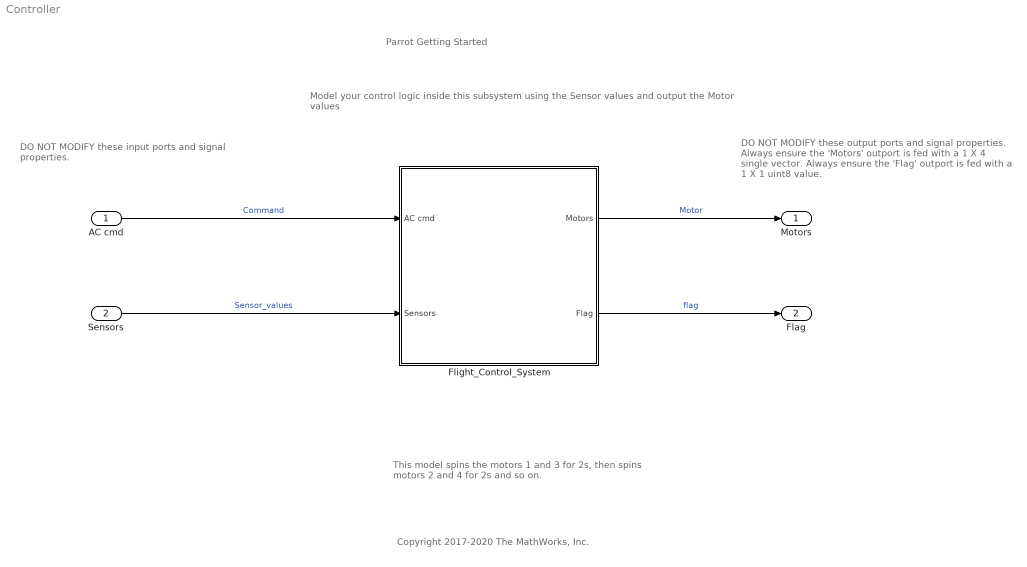
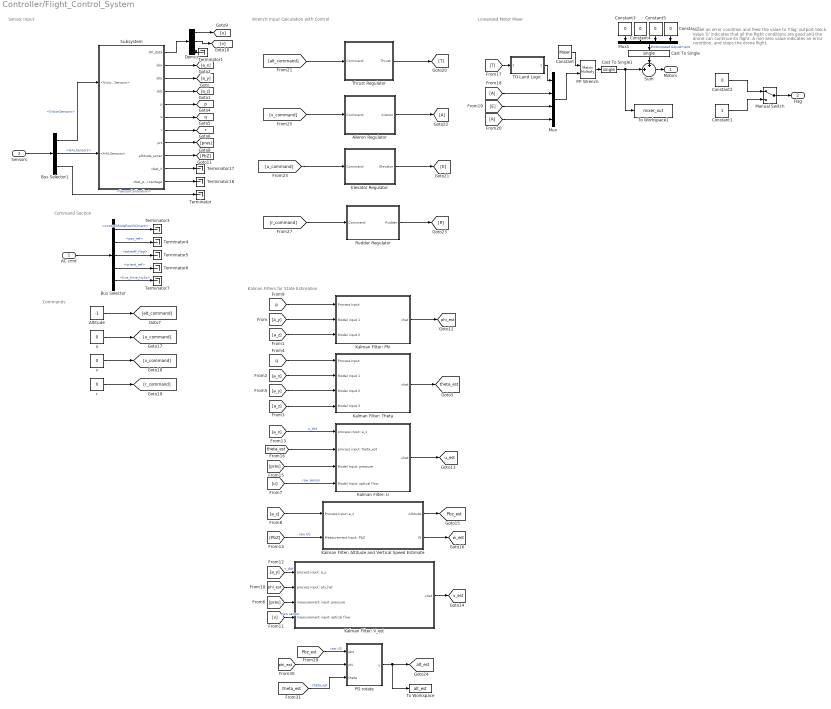
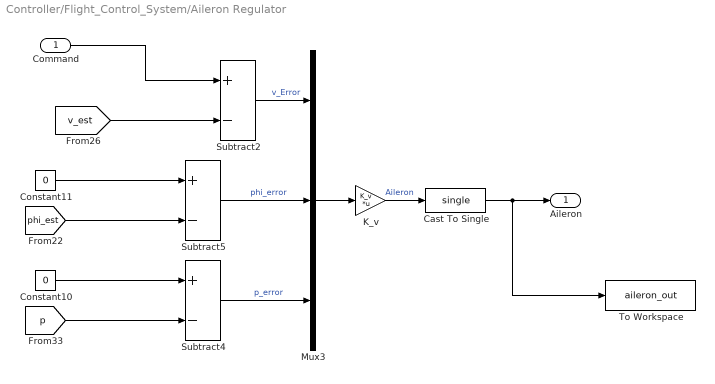
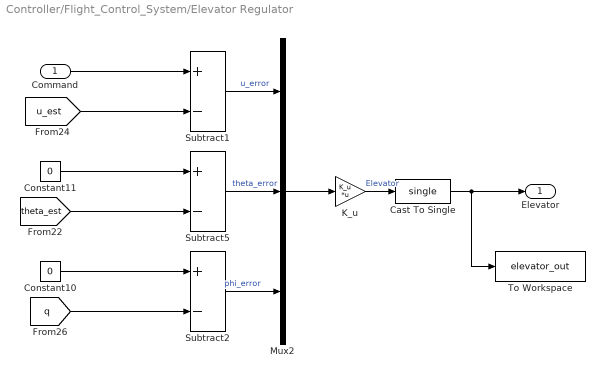
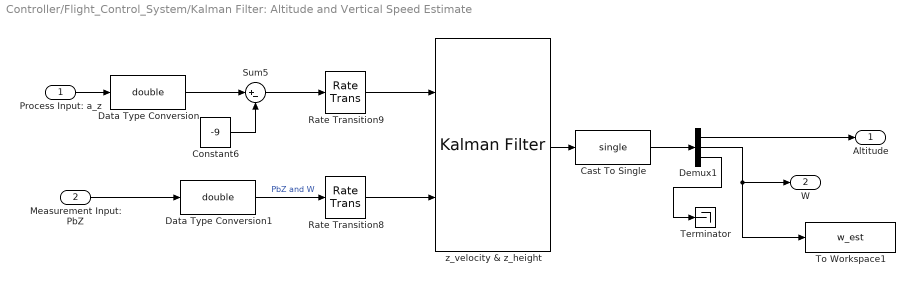
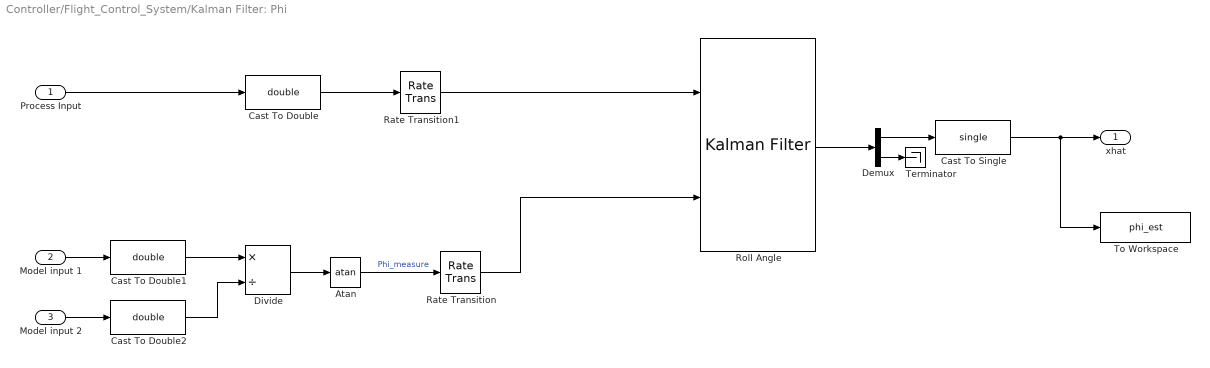
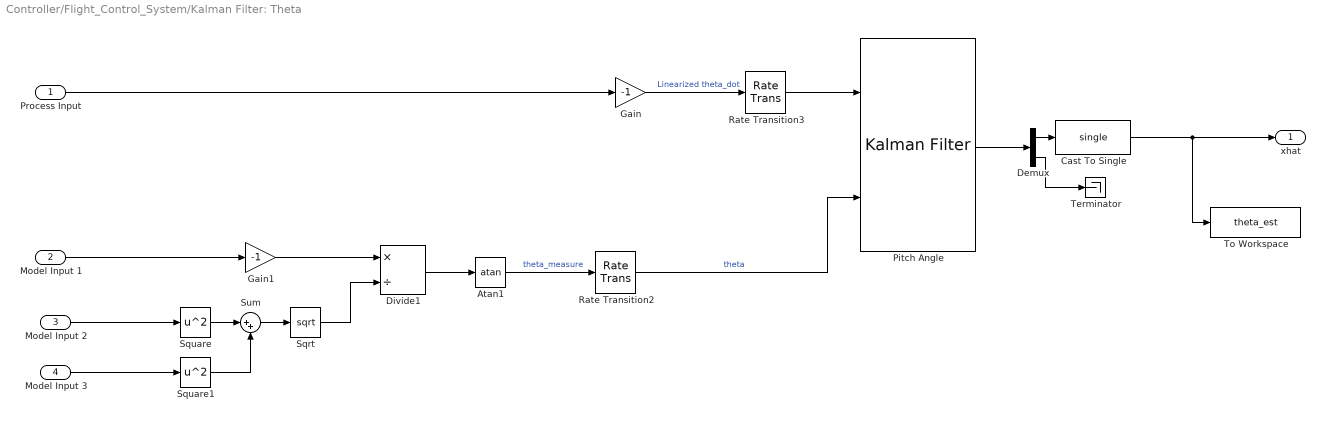
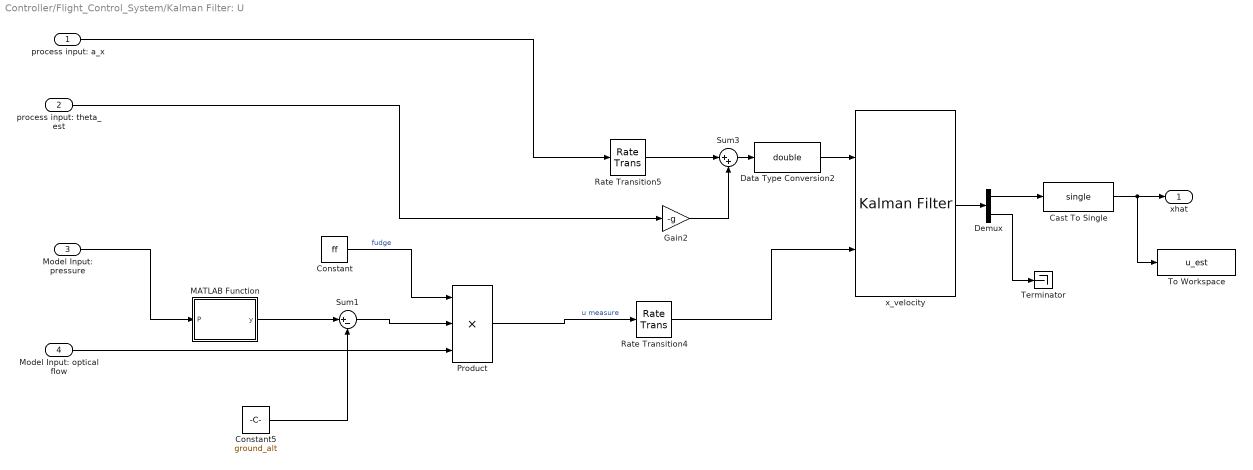
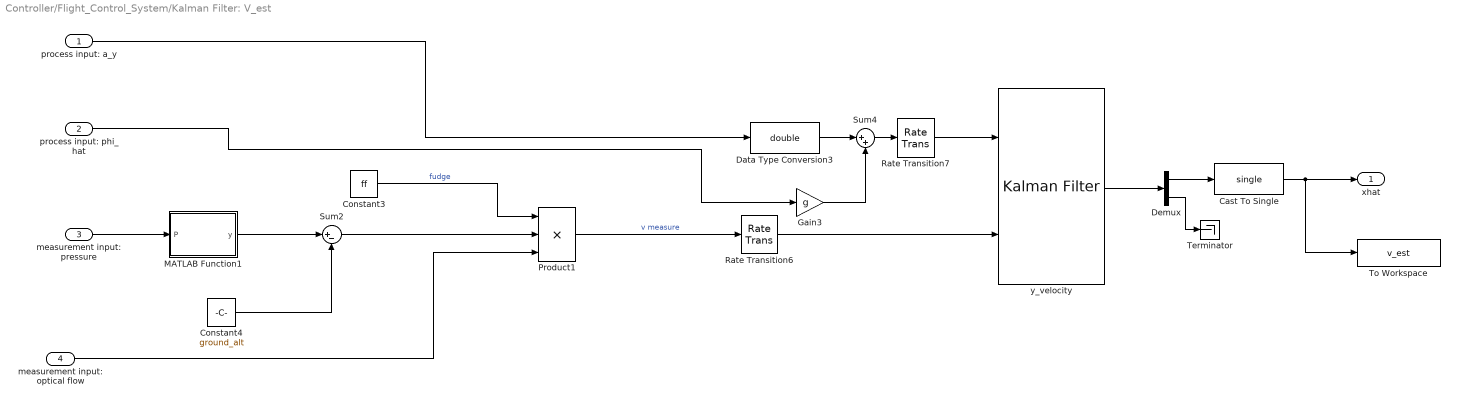
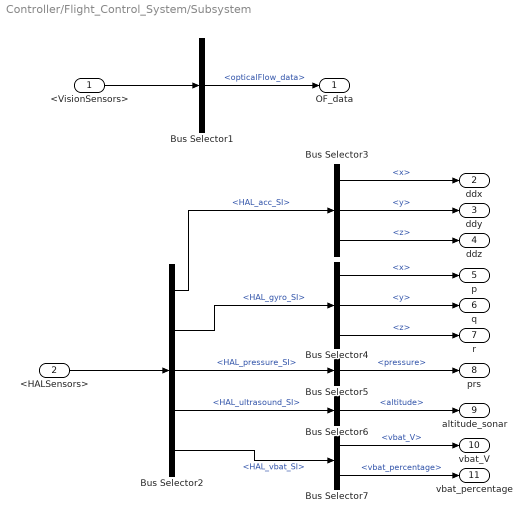
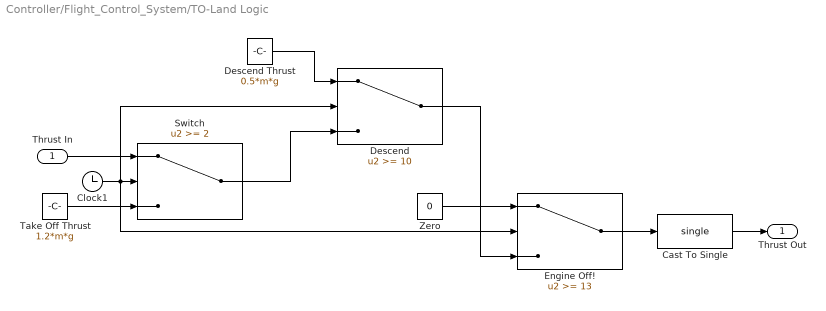
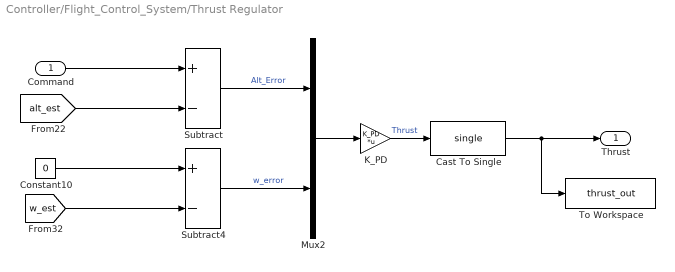
== system Controller/Flight_Control_System/Rudder Regulator ==
  Command : Inport
  Cast To Single : DataTypeConversion  OutDataTypeStr=single
  K_r : Gain  Gain=K_psi(1)
  Subtract3 : Sum  Inputs=+-
  To Workspace : ToWorkspace  VariableName=rudder_out  SaveFormat=Timeseries  SampleTime=-1
  Rudder : Outport
  wires:
  Subtract3/1 -> K_r/1  "r_error"
  K_r/1 -> Cast To Single/1  "Rudder"
  [r] -> Subtract3/2
  Command/1 -> Subtract3/1
  Cast To Single/1 -> To Workspace/1, Rudder/1

== matlab function Controller/Flight_Control_System/Kalman Filter: U/MATLAB Function ==
function y = z_pres(P)
g = 9.8; % acceleration due to gravity m/s^2
M = 0.0289644; % molar mass of air in kg/mol
R = 8.31432; % universal gas constant Nm/mol/k
p0 = 101325; % Pa standard pressure

T =288.15;  % Assumed temperature in kelvin
K =-g*M/R/T;
z_hypsometric = 1/K*log(P/p0);
y = z_hypsometric;

== matlab function Controller/Flight_Control_System/PD rotate ==
function y = rotate_BE(pbz, phi, theta)
roll_BE = [1 0 0; 0 cos(phi) sin(phi); 0 -sin(phi) cos(phi)]';
pitch_BE = [cos(theta) 0 -sin(theta); 0 1 0; sin(theta) 0 cos(theta);]';
%yaw_BE = simplify(inv([cos(psi) sin(psi) 0; -sin(psi) cos(psi) 0; 0 0 1;]));
rotater = roll_BE*pitch_BE*pbz;
y = rotater(3);

== matlab function Controller/Flight_Control_System/Kalman Filter: V_est/MATLAB Function1 ==
function y = z_pres(P)
g = 9.8; % acceleration due to gravity m/s^2
M = 0.0289644; % molar mass of air in kg/mol
R = 8.31432; % universal gas constant Nm/mol/k
p0 = 101325; % Pa standard pressure

T =288.15;  % Assumed temperature in kelvin
K =-g*M/R/T;
z_hypsometric = 1/K*log(P/p0);
y = z_hypsometric;

/*
 * Controller.c
 *
 * Academic License - for use in teaching, academic research, and meeting
 * course requirements at degree granting institutions only.  Not for
 * government, commercial, or other organizational use.
 *
 * Code generation for model "Controller".
 *
 * Model version              : 2.19
 * Simulink Coder version : 9.5 (R2021a) 14-Nov-2020
 * C source code generated on : Thu Apr 28 18:48:22 2022
 *
 * Target selection: ert.tlc
 * Note: GRT includes extra infrastructure and instrumentation for prototyping
 * Embedded hardware selection: ARM Compatible->ARM 9
 * Code generation objectives: Unspecified
 * Validation result: Not run
 */

#include "Controller.h"
#include "Controller_private.h"

/* Exported block signals */
CommandBus cmd_inport;                 /* '<Root>/AC cmd' */
SensorsBus sensor_inport;              /* '<Root>/Sensors' */
real32_T motors_outport[4];            /* '<S1>/Sum' */
uint8_T flag_outport;                  /* '<S1>/Manual Switch' */

/* Block signals (default storage) */
B_Controller_T Controller_B;

/* Block states (default storage) */
DW_Controller_T Controller_DW;

/* External outputs (root outports fed by signals with default storage) */
ExtY_Controller_T Controller_Y;

/* Real-time model */
static RT_MODEL_Controller_T Controller_M_;
RT_MODEL_Controller_T *const Controller_M = &Controller_M_;

/*
 * System initialize for enable system:
 *    '<S90>/MeasurementUpdate'
 *    '<S201>/MeasurementUpdate'
 *    '<S257>/MeasurementUpdate'
 */
void Controll_MeasurementUpdate_Init(B_MeasurementUpdate_Controlle_T *localB,
  P_MeasurementUpdate_Controlle_T *localP)
{
  /* SystemInitialize for Product: '<S121>/Product3' incorporates:
   *  Outport: '<S121>/L*(y[k]-yhat[k|k-1])'
   */
  localB->Product3[0] = localP->Lykyhatkk1_Y0;
  localB->Product3[1] = localP->Lykyhatkk1_Y0;
}

/*
 * Disable for enable system:
 *    '<S90>/MeasurementUpdate'
 *    '<S201>/MeasurementUpdate'
 *    '<S257>/MeasurementUpdate'
 */
void Contr_MeasurementUpdate_Disable(B_MeasurementUpdate_Controlle_T *localB,
  DW_MeasurementUpdate_Controll_T *localDW, P_MeasurementUpdate_Controlle_T
  *localP)
{
  /* Disable for Product: '<S121>/Product3' incorporates:
   *  Outport: '<S121>/L*(y[k]-yhat[k|k-1])'
   */
  localB->Product3[0] = localP->Lykyhatkk1_Y0;
  localB->Product3[1] = localP->Lykyhatkk1_Y0;
  localDW->MeasurementUpdate_MODE = false;
}

/*
 * Start for enable system:
 *    '<S90>/MeasurementUpdate'
 *    '<S201>/MeasurementUpdate'
 *    '<S257>/MeasurementUpdate'
 */
void Control_MeasurementUpdate_Start(DW_MeasurementUpdate_Controll_T *localDW)
{
  localDW->MeasurementUpdate_MODE = false;
}

/*
 * Output and update for enable system:
 *    '<S90>/MeasurementUpdate'
 *    '<S201>/MeasurementUpdate'
 *    '<S257>/MeasurementUpdate'
 */
void Controller_MeasurementUpdate(boolean_T rtu_Enable, const real_T rtu_Lk[2],
  real_T rtu_yk, const real_T rtu_Ck[2], const real_T rtu_xhatkk1[2], real_T
  rtu_Dk, real_T rtu_uk, B_MeasurementUpdate_Controlle_T *localB,
  DW_MeasurementUpdate_Controll_T *localDW, P_MeasurementUpdate_Controlle_T
  *localP)
{
  real_T rtb_Sum_i;

  /* Outputs for Enabled SubSystem: '<S90>/MeasurementUpdate' incorporates:
   *  EnablePort: '<S121>/Enable'
   */
  if (rtu_Enable) {
    localDW->MeasurementUpdate_MODE = true;

    /* Sum: '<S121>/Sum' incorporates:
     *  Product: '<S121>/C[k]*xhat[k|k-1]'
     *  Product: '<S121>/D[k]*u[k]'
     *  Sum: '<S121>/Add1'
     */
    rtb_Sum_i = rtu_yk - ((rtu_Ck[0] * rtu_xhatkk1[0] + rtu_Ck[1] * rtu_xhatkk1
      [1]) + rtu_Dk * rtu_uk);

    /* Product: '<S121>/Product3' */
    localB->Product3[0] = rtu_Lk[0] * rtb_Sum_i;
    localB->Product3[1] = rtu_Lk[1] * rtb_Sum_i;
  } else if (localDW->MeasurementUpdate_MODE) {
    Contr_MeasurementUpdate_Disable(localB, localDW, localP);
  }

  /* End of Outputs for SubSystem: '<S90>/MeasurementUpdate' */
}

/*
 * System initialize for enable system:
 *    '<S97>/Enabled Subsystem'
 *    '<S208>/Enabled Subsystem'
 *    '<S264>/Enabled Subsystem'
 */
void Controlle_EnabledSubsystem_Init(B_EnabledSubsystem_Controller_T *localB,
  P_EnabledSubsystem_Controller_T *localP)
{
  /* SystemInitialize for Product: '<S123>/Product2' incorporates:
   *  Outport: '<S123>/deltax'
   */
  localB->Product2[0] = localP->deltax_Y0;
  localB->Product2[1] = localP->deltax_Y0;
}

/*
 * Disable for enable system:
 *    '<S97>/Enabled Subsystem'
 *    '<S208>/Enabled Subsystem'
 *    '<S264>/Enabled Subsystem'
 */
void Contro_EnabledSubsystem_Disable(B_EnabledSubsystem_Controller_T *localB,
  DW_EnabledSubsystem_Controlle_T *localDW, P_EnabledSubsystem_Controller_T
  *localP)
{
  /* Disable for Product: '<S123>/Product2' incorporates:
   *  Outport: '<S123>/deltax'
   */
  localB->Product2[0] = localP->deltax_Y0;
  localB->Product2[1] = localP->deltax_Y0;
  localDW->EnabledSubsystem_MODE = false;
}

/*
 * Start for enable system:
 *    '<S97>/Enabled Subsystem'
 *    '<S208>/Enabled Subsystem'
 *    '<S264>/Enabled Subsystem'
 */
void Controll_EnabledSubsystem_Start(DW_EnabledSubsystem_Controlle_T *localDW)
{
  localDW->EnabledSubsystem_MODE = false;
}

/*
 * Output and update for enable system:
 *    '<S97>/Enabled Subsystem'
 *    '<S208>/Enabled Subsystem'
 *    '<S264>/Enabled Subsystem'
 */
void Controller_EnabledSubsystem(boolean_T rtu_Enable, const real_T rtu_Mk[2],
  const real_T rtu_Ck[2], real_T rtu_yk, const real_T rtu_xhatkk1[2],
  B_EnabledSubsystem_Controller_T *localB, DW_EnabledSubsystem_Controlle_T
  *localDW, P_EnabledSubsystem_Controller_T *localP)
{
  real_T rtb_Add1;

  /* Outputs for Enabled SubSystem: '<S97>/Enabled Subsystem' incorporates:
   *  EnablePort: '<S123>/Enable'
   */
  if (rtu_Enable) {
    localDW->EnabledSubsystem_MODE = true;

    /* Sum: '<S123>/Add1' incorporates:
     *  Product: '<S123>/Product'
     */
    rtb_Add1 = rtu_yk - (rtu_Ck[0] * rtu_xhatkk1[0] + rtu_Ck[1] * rtu_xhatkk1[1]);

    /* Product: '<S123>/Product2' */
    localB->Product2[0] = rtu_Mk[0] * rtb_Add1;
    localB->Product2[1] = rtu_Mk[1] * rtb_Add1;
  } else if (localDW->EnabledSubsystem_MODE) {
    Contro_EnabledSubsystem_Disable(localB, localDW, localP);
  }

  /* End of Outputs for SubSystem: '<S97>/Enabled Subsystem' */
}

/*
 * Output and update for atomic system:
 *    '<S7>/MATLAB Function'
 *    '<S8>/MATLAB Function1'
 */
void Controller_MATLABFunction(real32_T rtu_P, B_MATLABFunction_Controller_T
  *localB)
{
  /* MATLAB Function 'Flight_Control_System/Kalman Filter: U/MATLAB Function': '<S179>:1' */
  /* '<S179>:1:9' */
  /* '<S179>:1:10' */
  localB->y = (real32_T)log(rtu_P / 101325.0F) * -8440.23926F;
}

/* Model step function */
void Controller_step(void)
{
  /* local block i/o variables */
  real_T rtb_DataTypeConversion2;
  real_T rtb_Reshapeu_c;
  real32_T rtb_Add_g[2];
  int32_T aoffset;
  int32_T coffset;
  int32_T i;
  int32_T j;
  real32_T a_tmp;
  real32_T rtb_Add_pl_idx_0;
  real32_T rtb_Sum3;

  /* DataTypeConversion: '<S1>/Cast To Single' incorporates:
   *  Constant: '<S1>/Constant3'
   *  Constant: '<S1>/Constant4'
   *  Constant: '<S1>/Constant5'
   *  Constant: '<S1>/Constant6'
   */
  Controller_B.CastToSingle[0] = (real32_T)Controller_P.Constant3_Value;
  Controller_B.CastToSingle[1] = (real32_T)Controller_P.Constant4_Value;
  Controller_B.CastToSingle[2] = (real32_T)Controller_P.Constant5_Value;
  Controller_B.CastToSingle[3] = (real32_T)Controller_P.Constant6_Value;

  /* Clock: '<S12>/Clock1' */
  Controller_B.Clock1 = Controller_M->Timing.t[0];

  /* DataTypeConversion: '<S4>/Data Type Conversion1' incorporates:
   *  Inport: '<Root>/Sensors'
   */
  Controller_B.PbZandW = sensor_inport.HALSensors.HAL_ultrasound_SI.altitude;

  /* Delay: '<S14>/MemoryX' incorporates:
   *  Constant: '<S14>/X0'
   */
  if (Controller_DW.icLoad) {
    Controller_DW.MemoryX_DSTATE[0] = Controller_P.X0_Value[0];
    Controller_DW.MemoryX_DSTATE[1] = Controller_P.X0_Value[1];
    Controller_DW.MemoryX_DSTATE[2] = Controller_P.X0_Value[2];
  }

  /* Outputs for Enabled SubSystem: '<S42>/Enabled Subsystem' incorporates:
   *  EnablePort: '<S68>/Enable'
   */
  /* Constant: '<S14>/Enable' */
  if (Controller_P.Enable_Value) {
    Controller_DW.EnabledSubsystem_MODE_k = true;

    /* Sum: '<S68>/Add1' incorporates:
     *  Constant: '<S14>/C'
     *  Delay: '<S14>/MemoryX'
     *  Product: '<S68>/Product'
     *  Reshape: '<S14>/Reshapey'
     */
    Controller_B.Ckxhatkk1 = Controller_B.PbZandW - ((Controller_P.C_Value[0] *
      Controller_DW.MemoryX_DSTATE[0] + Controller_P.C_Value[1] *
      Controller_DW.MemoryX_DSTATE[1]) + Controller_P.C_Value[2] *
      Controller_DW.MemoryX_DSTATE[2]);

    /* Product: '<S68>/Product2' incorporates:
     *  Constant: '<S15>/KalmanGainM'
     *  DataTypeConversion: '<S59>/Conversion'
     */
    Controller_B.Product2[0] = Controller_P.KalmanGainM_Value_j[0] *
      Controller_B.Ckxhatkk1;
    Controller_B.Product2[1] = Controller_P.KalmanGainM_Value_j[1] *
      Controller_B.Ckxhatkk1;
    Controller_B.Product2[2] = Controller_P.KalmanGainM_Value_j[2] *
      Controller_B.Ckxhatkk1;
  } else if (Controller_DW.EnabledSubsystem_MODE_k) {
    /* Disable for Product: '<S68>/Product2' incorporates:
     *  Outport: '<S68>/deltax'
     */
    Controller_B.Product2[0] = Controller_P.deltax_Y0;
    Controller_B.Product2[1] = Controller_P.deltax_Y0;
    Controller_B.Product2[2] = Controller_P.deltax_Y0;
    Controller_DW.EnabledSubsystem_MODE_k = false;
  }

  /* End of Outputs for SubSystem: '<S42>/Enabled Subsystem' */

  /* Trigonometry: '<S5>/Atan' incorporates:
   *  DataTypeConversion: '<S5>/Cast To Double1'
   *  DataTypeConversion: '<S5>/Cast To Double2'
   *  Inport: '<Root>/Sensors'
   *  Product: '<S5>/Divide'
   */
  Controller_B.Phi_measure = atan((real_T)sensor_inport.HALSensors.HAL_acc_SI.y /
    sensor_inport.HALSensors.HAL_acc_SI.z);

  /* Reshape: '<S69>/Reshapey' */
  Controller_B.Reshapey_c = Controller_B.Phi_measure;

  /* Delay: '<S69>/MemoryX' incorporates:
   *  Constant: '<S69>/X0'
   */
  if (Controller_DW.icLoad_p) {
    Controller_DW.MemoryX_DSTATE_n[0] = Controller_P.X0_Value_n[0];
    Controller_DW.MemoryX_DSTATE_n[1] = Controller_P.X0_Value_n[1];
  }

  /* Delay: '<S69>/MemoryX' */
  Controller_B.MemoryX_k[0] = Controller_DW.MemoryX_DSTATE_n[0];
  Controller_B.MemoryX_k[1] = Controller_DW.MemoryX_DSTATE_n[1];

  /* Outputs for Enabled SubSystem: '<S97>/Enabled Subsystem' */
  /* Constant: '<S69>/Enable' incorporates:
   *  Constant: '<S69>/C'
   *  Constant: '<S70>/KalmanGainM'
   */
  Controller_EnabledSubsystem(Controller_P.Enable_Value_p,
    Controller_P.KalmanGainM_Value, Controller_P.C_Value_h,
    Controller_B.Reshapey_c, Controller_B.MemoryX_k,
    &Controller_B.EnabledSubsystem_e, &Controller_DW.EnabledSubsystem_e,
    &Controller_P.EnabledSubsystem_e);

  /* End of Outputs for SubSystem: '<S97>/Enabled Subsystem' */

  /* Sum: '<S97>/Add' */
  Controller_B.Ckxhatkk1 = Controller_B.EnabledSubsystem_e.Product2[0] +
    Controller_B.MemoryX_k[0];

  /* Trigonometry: '<S6>/Atan1' incorporates:
   *  Gain: '<S6>/Gain1'
   *  Inport: '<Root>/Sensors'
   *  Math: '<S6>/Square'
   *  Math: '<S6>/Square1'
   *  Product: '<S6>/Divide1'
   *  Sqrt: '<S6>/Sqrt'
   *  Sum: '<S6>/Sum'
   */
  Controller_B.theta_measure = (real32_T)atan(Controller_P.Gain1_Gain *
    sensor_inport.HALSensors.HAL_acc_SI.x / (real32_T)sqrt
    (sensor_inport.HALSensors.HAL_acc_SI.y *
     sensor_inport.HALSensors.HAL_acc_SI.y +
     sensor_inport.HALSensors.HAL_acc_SI.z *
     sensor_inport.HALSensors.HAL_acc_SI.z));

  /* Delay: '<S124>/MemoryX' incorporates:
   *  Constant: '<S124>/X0'
   */
  if (Controller_DW.icLoad_g) {
    Controller_DW.MemoryX_DSTATE_l[0] = Controller_P.X0_Value_e[0];
    Controller_DW.MemoryX_DSTATE_l[1] = Controller_P.X0_Value_e[1];
  }

  /* Outputs for Enabled SubSystem: '<S152>/Enabled Subsystem' incorporates:
   *  EnablePort: '<S178>/Enable'
   */
  /* Constant: '<S124>/Enable' */
  if (Controller_P.Enable_Value_a) {
    Controller_DW.EnabledSubsystem_MODE = true;

    /* Sum: '<S178>/Add1' incorporates:
     *  Constant: '<S124>/C'
     *  Delay: '<S124>/MemoryX'
     *  Product: '<S178>/Product'
     */
    rtb_Sum3 = Controller_B.theta_measure - (Controller_P.C_Value_l[0] *
      Controller_DW.MemoryX_DSTATE_l[0] + Controller_P.C_Value_l[1] *
      Controller_DW.MemoryX_DSTATE_l[1]);

    /* Product: '<S178>/Product2' incorporates:
     *  Constant: '<S125>/KalmanGainM'
     *  DataTypeConversion: '<S169>/Conversion'
     */
    Controller_B.Product2_l[0] = (real32_T)Controller_P.KalmanGainM_Value_c[0] *
      rtb_Sum3;
    Controller_B.Product2_l[1] = (real32_T)Controller_P.KalmanGainM_Value_c[1] *
      rtb_Sum3;
  } else if (Controller_DW.EnabledSubsystem_MODE) {
    /* Disable for Product: '<S178>/Product2' incorporates:
     *  Outport: '<S178>/deltax'
     */
    Controller_B.Product2_l[0] = Controller_P.deltax_Y0_m;
    Controller_B.Product2_l[1] = Controller_P.deltax_Y0_m;
    Controller_DW.EnabledSubsystem_MODE = false;
  }

  /* End of Outputs for SubSystem: '<S152>/Enabled Subsystem' */

  /* Sum: '<S152>/Add' incorporates:
   *  Delay: '<S124>/MemoryX'
   */
  rtb_Add_pl_idx_0 = Controller_B.Product2_l[0] +
    Controller_DW.MemoryX_DSTATE_l[0];

  /* MATLAB Function: '<S1>/PD rotate' incorporates:
   *  DataTypeConversion: '<S5>/Cast To Single'
   *  Sum: '<S97>/Add'
   */
  /* MATLAB Function 'Flight_Control_System/PD rotate': '<S9>:1' */
  rtb_Sum3 = (real32_T)sin((real32_T)Controller_B.Ckxhatkk1);
  a_tmp = (real32_T)cos((real32_T)Controller_B.Ckxhatkk1);
  Controller_B.a[1] = 0.0F;
  Controller_B.a[4] = a_tmp;
  Controller_B.a[7] = rtb_Sum3;
  Controller_B.a[2] = 0.0F;
  Controller_B.a[5] = -rtb_Sum3;
  Controller_B.a[8] = a_tmp;
  rtb_Sum3 = (real32_T)sin(rtb_Add_pl_idx_0);
  a_tmp = (real32_T)cos(rtb_Add_pl_idx_0);
  Controller_B.b[0] = a_tmp;
  Controller_B.b[3] = 0.0F;
  Controller_B.b[6] = -rtb_Sum3;
  Controller_B.a[0] = 1.0F;
  Controller_B.b[1] = 0.0F;
  Controller_B.a[3] = 0.0F;
  Controller_B.b[4] = 1.0F;
  Controller_B.a[6] = 0.0F;
  Controller_B.b[7] = 0.0F;
  Controller_B.b[2] = rtb_Sum3;
  Controller_B.b[5] = 0.0F;
  Controller_B.b[8] = a_tmp;

  /* '<S9>:1:5' */
  for (j = 0; j < 3; j++) {
    coffset = j * 3;
    for (i = 0; i < 3; i++) {
      aoffset = i * 3;
      Controller_B.y[coffset + i] = (Controller_B.a[aoffset + 1] *
        Controller_B.b[j + 3] + Controller_B.a[aoffset] * Controller_B.b[j]) +
        Controller_B.a[aoffset + 2] * Controller_B.b[j + 6];
    }
  }

  /* DataTypeConversion: '<S13>/Cast To Single' incorporates:
   *  Constant: '<S13>/Constant10'
   *  Constant: '<S1>/Altitude'
   *  DataTypeConversion: '<S4>/Cast To Single'
   *  Delay: '<S14>/MemoryX'
   *  Gain: '<S13>/K_PD'
   *  MATLAB Function: '<S1>/PD rotate'
   *  Sum: '<S13>/Subtract'
   *  Sum: '<S13>/Subtract4'
   *  Sum: '<S42>/Add'
   */
  /* '<S9>:1:6' */
  Controller_B.CastToSingle_l = (real32_T)((Controller_P.Altitude_Value -
    (real32_T)(Controller_B.Product2[0] + Controller_DW.MemoryX_DSTATE[0]) *
    Controller_B.y[2]) * Controller_P.K_PD[0] + (Controller_P.Constant10_Value -
    (real32_T)(Controller_B.Product2[1] + Controller_DW.MemoryX_DSTATE[1])) *
    Controller_P.K_PD[1]);

  /* Switch: '<S12>/Engine Off!' incorporates:
   *  Constant: '<S12>/Zero'
   *  Switch: '<S12>/Descend'
   *  Switch: '<S12>/Switch'
   */
  if (Controller_B.Clock1 >= Controller_P.EngineOff_Threshold) {
    Controller_B.Clock1 = Controller_P.Zero_Value;
  } else if (Controller_B.Clock1 >= Controller_P.Descend_Threshold) {
    /* Switch: '<S12>/Descend' incorporates:
     *  Constant: '<S12>/Descend Thrust'
     */
    Controller_B.Clock1 = Controller_P.DescendThrust_Value;
  } else if (Controller_B.Clock1 >= Controller_P.Switch_Threshold) {
    /* Switch: '<S12>/Switch' incorporates:
     *  Switch: '<S12>/Descend'
     */
    Controller_B.Clock1 = Controller_B.CastToSingle_l;
  } else {
    /* Switch: '<S12>/Descend' incorporates:
     *  Constant: '<S12>/Take Off Thrust'
     */
    Controller_B.Clock1 = Controller_P.TakeOffThrust_Value;
  }

  /* End of Switch: '<S12>/Engine Off!' */

  /* MATLAB Function: '<S8>/MATLAB Function1' incorporates:
   *  Inport: '<Root>/Sensors'
   */
  Controller_MATLABFunction(sensor_inport.HALSensors.HAL_pressure_SI.pressure,
    &Controller_B.sf_MATLABFunction1);

  /* Product: '<S8>/Product1' incorporates:
   *  Constant: '<S8>/Constant3'
   *  Constant: '<S8>/Constant4'
   *  Inport: '<Root>/Sensors'
   *  Sum: '<S8>/Sum2'
   */
  Controller_B.vmeasure = (Controller_B.sf_MATLABFunction1.y -
    Controller_P.ground_alt) * Controller_P.ff *
    sensor_inport.VisionSensors.opticalFlow_data[1];

  /* Reshape: '<S236>/Reshapey' */
  Controller_B.Reshapey_k = Controller_B.vmeasure;

  /* Delay: '<S236>/MemoryX' incorporates:
   *  Constant: '<S236>/X0'
   */
  if (Controller_DW.icLoad_i) {
    Controller_DW.MemoryX_DSTATE_p[0] = Controller_P.X0_Value_i[0];
    Controller_DW.MemoryX_DSTATE_p[1] = Controller_P.X0_Value_i[1];
  }

  /* Delay: '<S236>/MemoryX' */
  Controller_B.MemoryX_d[0] = Controller_DW.MemoryX_DSTATE_p[0];
  Controller_B.MemoryX_d[1] = Controller_DW.MemoryX_DSTATE_p[1];

  /* Outputs for Enabled SubSystem: '<S264>/Enabled Subsystem' */
  /* Constant: '<S236>/Enable' incorporates:
   *  Constant: '<S236>/C'
   *  Constant: '<S237>/KalmanGainM'
   */
  Controller_EnabledSubsystem(Controller_P.Enable_Value_k,
    Controller_P.KalmanGainM_Value_m, Controller_P.C_Value_c,
    Controller_B.Reshapey_k, Controller_B.MemoryX_d,
    &Controller_B.EnabledSubsystem_m, &Controller_DW.EnabledSubsystem_m,
    &Controller_P.EnabledSubsystem_m);

  /* End of Outputs for SubSystem: '<S264>/Enabled Subsystem' */

  /* Sum: '<S2>/Subtract2' incorporates:
   *  Constant: '<S1>/v'
   *  DataTypeConversion: '<S8>/Cast To Single'
   *  Sum: '<S264>/Add'
   */
  Controller_B.v_Error = Controller_P.v_Value - (real32_T)
    (Controller_B.EnabledSubsystem_m.Product2[0] + Controller_B.MemoryX_d[0]);

  /* Sum: '<S2>/Subtract5' incorporates:
   *  Constant: '<S2>/Constant11'
   *  DataTypeConversion: '<S5>/Cast To Single'
   */
  Controller_B.phi_error = Controller_P.Constant11_Value - (real32_T)
    Controller_B.Ckxhatkk1;

  /* DataTypeConversion: '<S225>/Conversion' incorporates:
   *  Constant: '<S181>/KalmanGainM'
   */
  Controller_B.Conversion_k[0] = Controller_P.KalmanGainM_Value_n[0];
  Controller_B.Conversion_k[1] = Controller_P.KalmanGainM_Value_n[1];

  /* MATLAB Function: '<S7>/MATLAB Function' incorporates:
   *  Inport: '<Root>/Sensors'
   */
  Controller_MATLABFunction(sensor_inport.HALSensors.HAL_pressure_SI.pressure,
    &Controller_B.sf_MATLABFunction);

  /* Product: '<S7>/Product' incorporates:
   *  Constant: '<S7>/Constant'
   *  Constant: '<S7>/Constant5'
   *  Inport: '<Root>/Sensors'
   *  Sum: '<S7>/Sum1'
   */
  Controller_B.umeasure = (Controller_B.sf_MATLABFunction.y -
    Controller_P.ground_alt) * Controller_P.ff *
    sensor_inport.VisionSensors.opticalFlow_data[0];

  /* Reshape: '<S180>/Reshapey' */
  Controller_B.Reshapey_b = Controller_B.umeasure;

  /* Delay: '<S180>/MemoryX' incorporates:
   *  Constant: '<S180>/X0'
   */
  if (Controller_DW.icLoad_o) {
    Controller_DW.MemoryX_DSTATE_i[0] = Controller_P.X0_Value_l[0];
    Controller_DW.MemoryX_DSTATE_i[1] = Controller_P.X0_Value_l[1];
  }

  /* Delay: '<S180>/MemoryX' */
  Controller_B.MemoryX_g[0] = Controller_DW.MemoryX_DSTATE_i[0];
  Controller_B.MemoryX_g[1] = Controller_DW.MemoryX_DSTATE_i[1];

  /* Outputs for Enabled SubSystem: '<S208>/Enabled Subsystem' */
  /* Constant: '<S180>/Enable' incorporates:
   *  Constant: '<S180>/C'
   */
  Controller_EnabledSubsystem(Controller_P.Enable_Value_n,
    Controller_B.Conversion_k, Controller_P.C_Value_g, Controller_B.Reshapey_b,
    Controller_B.MemoryX_g, &Controller_B.EnabledSubsystem_o,
    &Controller_DW.EnabledSubsystem_o, &Controller_P.EnabledSubsystem_o);

  /* End of Outputs for SubSystem: '<S208>/Enabled Subsystem' */

  /* Sum: '<S3>/Subtract1' incorporates:
   *  Constant: '<S1>/u'
   *  DataTypeConversion: '<S7>/Cast To Single'
   *  Sum: '<S208>/Add'
   */
  Controller_B.u_error = Controller_P.u_Value - (real32_T)
    (Controller_B.EnabledSubsystem_o.Product2[0] + Controller_B.MemoryX_g[0]);

  /* Sum: '<S3>/Subtract5' incorporates:
   *  Constant: '<S3>/Constant11'
   */
  Controller_B.theta_error = Controller_P.Constant11_Value_b - rtb_Add_pl_idx_0;

  /* Gain: '<S2>/K_v' incorporates:
   *  Constant: '<S2>/Constant10'
   *  Inport: '<Root>/Sensors'
   *  SignalConversion generated from: '<S2>/K_v'
   *  Sum: '<S2>/Subtract4'
   */
  Controller_B.d = (Controller_P.K_v[0] * Controller_B.v_Error +
                    Controller_P.K_v[1] * Controller_B.phi_error) +
    (Controller_P.Constant10_Value_o - sensor_inport.HALSensors.HAL_gyro_SI.x) *
    Controller_P.K_v[2];

  /* Gain: '<S3>/K_u' incorporates:
   *  Constant: '<S3>/Constant10'
   *  Inport: '<Root>/Sensors'
   *  SignalConversion generated from: '<S3>/K_u'
   *  Sum: '<S3>/Subtract2'
   */
  Controller_B.d1 = (Controller_P.K_u[0] * Controller_B.u_error +
                     Controller_P.K_u[1] * Controller_B.theta_error) +
    (Controller_P.Constant10_Value_n - sensor_inport.HALSensors.HAL_gyro_SI.y) *
    Controller_P.K_u[2];

  /* SignalConversion generated from: '<S1>/M* Wrench' incorporates:
   *  Constant: '<S1>/r'
   *  DataTypeConversion: '<S10>/Cast To Single'
   *  Gain: '<S10>/K_r'
   *  Inport: '<Root>/Sensors'
   *  Sum: '<S10>/Subtract3'
   */
  rtb_Sum3 = (real32_T)((Controller_P.r_Value -
    sensor_inport.HALSensors.HAL_gyro_SI.z) * Controller_P.K_psi[0]);
  for (i = 0; i < 4; i++) {
    /* Sum: '<S1>/Sum' incorporates:
     *  Constant: '<S1>/Constant'
     *  DataTypeConversion: '<S12>/Cast To Single'
     *  DataTypeConversion: '<S1>/Cast To Single1'
     *  DataTypeConversion: '<S2>/Cast To Single'
     *  DataTypeConversion: '<S3>/Cast To Single'
     *  Gain: '<S2>/K_v'
     *  Gain: '<S3>/K_u'
     *  Product: '<S1>/M* Wrench'
     */
    motors_outport[i] = (real32_T)(((Controller_P.Mixer[i + 4] * (real32_T)
      Controller_B.d + Controller_P.Mixer[i] * (real32_T)Controller_B.Clock1) +
      Controller_P.Mixer[i + 8] * (real32_T)Controller_B.d1) +
      Controller_P.Mixer[i + 12] * rtb_Sum3) + Controller_B.CastToSingle[i];

    /* Outport: '<Root>/Motors' incorporates:
     *  Sum: '<S1>/Sum'
     */
    Controller_Y.Motors[i] = motors_outport[i];
  }

  /* ManualSwitch: '<S1>/Manual Switch' */
  if (Controller_P.ManualSwitch_CurrentSetting == 1) {
    /* ManualSwitch: '<S1>/Manual Switch' incorporates:
     *  Constant: '<S1>/Constant2'
     */
    flag_outport = Controller_P.Constant2_Value;
  } else {
    /* ManualSwitch: '<S1>/Manual Switch' incorporates:
     *  Constant: '<S1>/Constant1'
     */
    flag_outport = Controller_P.Constant1_Value;
  }

  /* End of ManualSwitch: '<S1>/Manual Switch' */

  /* Outport: '<Root>/Flag' */
  Controller_Y.Flag = flag_outport;

  /* Sum: '<S4>/Sum5' incorporates:
   *  Constant: '<S4>/Constant6'
   *  DataTypeConversion: '<S4>/Data Type Conversion'
   *  Inport: '<Root>/Sensors'
   */
  Controller_B.Sum5 = sensor_inport.HALSensors.HAL_acc_SI.z -
    Controller_P.Constant6_Value_g;

  /* Outputs for Enabled SubSystem: '<S35>/MeasurementUpdate' incorporates:
   *  EnablePort: '<S66>/Enable'
   */
  /* Constant: '<S14>/Enable' */
  /* MATLAB Function 'Kalman Filter/CovarianceOutputConfigurator/decideOutput/SqrtUsedFcn': '<S65>:1' */
  if (Controller_P.Enable_Value) {
    Controller_DW.MeasurementUpdate_MODE_m = true;

    /* Sum: '<S66>/Sum' incorporates:
     *  Constant: '<S14>/C'
     *  Constant: '<S14>/D'
     *  Delay: '<S14>/MemoryX'
     *  Product: '<S66>/C[k]*xhat[k|k-1]'
     *  Product: '<S66>/D[k]*u[k]'
     *  Reshape: '<S14>/Reshapeu'
     *  Reshape: '<S14>/Reshapey'
     *  Sum: '<S66>/Add1'
     */
    Controller_B.Clock1 = Controller_B.PbZandW - (((Controller_P.C_Value[0] *
      Controller_DW.MemoryX_DSTATE[0] + Controller_P.C_Value[1] *
      Controller_DW.MemoryX_DSTATE[1]) + Controller_P.C_Value[2] *
      Controller_DW.MemoryX_DSTATE[2]) + Controller_P.D_Value *
      Controller_B.Sum5);

    /* Product: '<S66>/Product3' incorporates:
     *  Constant: '<S15>/KalmanGainL'
     *  DataTypeConversion: '<S58>/Conversion'
     */
    Controller_B.Product3[0] = Controller_P.KalmanGainL_Value_a[0] *
      Controller_B.Clock1;
    Controller_B.Product3[1] = Controller_P.KalmanGainL_Value_a[1] *
      Controller_B.Clock1;
    Controller_B.Product3[2] = Controller_P.KalmanGainL_Value_a[2] *
      Controller_B.Clock1;
  } else if (Controller_DW.MeasurementUpdate_MODE_m) {
    /* Disable for Product: '<S66>/Product3' incorporates:
     *  Outport: '<S66>/L*(y[k]-yhat[k|k-1])'
     */
    Controller_B.Product3[0] = Controller_P.Lykyhatkk1_Y0;
    Controller_B.Product3[1] = Controller_P.Lykyhatkk1_Y0;
    Controller_B.Product3[2] = Controller_P.Lykyhatkk1_Y0;
    Controller_DW.MeasurementUpdate_MODE_m = false;
  }

  /* End of Outputs for SubSystem: '<S35>/MeasurementUpdate' */
  for (j = 0; j < 3; j++) {
    /* Sum: '<S35>/Add' incorporates:
     *  Constant: '<S14>/A'
     *  Constant: '<S14>/B'
     *  Delay: '<S14>/MemoryX'
     *  Product: '<S35>/A[k]*xhat[k|k-1]'
     *  Product: '<S35>/B[k]*u[k]'
     *  Product: '<S66>/Product3'
     *  Reshape: '<S14>/Reshapeu'
     */
    Controller_B.Add[j] = (Controller_P.B_Value[j] * Controller_B.Sum5 +
      (Controller_P.A_Value[j + 6] * Controller_DW.MemoryX_DSTATE[2] +
       (Controller_P.A_Value[j + 3] * Controller_DW.MemoryX_DSTATE[1] +
        Controller_P.A_Value[j] * Controller_DW.MemoryX_DSTATE[0]))) +
      Controller_B.Product3[j];
  }

  /* DataTypeConversion: '<S5>/Cast To Double' incorporates:
   *  Inport: '<Root>/Sensors'
   */
  Controller_B.CastToDouble = sensor_inport.HALSensors.HAL_gyro_SI.x;

  /* Reshape: '<S69>/Reshapeu' */
  Controller_B.Reshapeu_e = Controller_B.CastToDouble;

  /* Outputs for Enabled SubSystem: '<S90>/MeasurementUpdate' */
  /* Constant: '<S69>/Enable' incorporates:
   *  Constant: '<S69>/C'
   *  Constant: '<S69>/D'
   *  Constant: '<S70>/KalmanGainL'
   */
  Controller_MeasurementUpdate(Controller_P.Enable_Value_p,
    Controller_P.KalmanGainL_Value, Controller_B.Reshapey_c,
    Controller_P.C_Value_h, Controller_B.MemoryX_k, Controller_P.D_Value_c,
    Controller_B.Reshapeu_e, &Controller_B.MeasurementUpdate_d,
    &Controller_DW.MeasurementUpdate_d, &Controller_P.MeasurementUpdate_d);

  /* End of Outputs for SubSystem: '<S90>/MeasurementUpdate' */

  /* Sum: '<S90>/Add' incorporates:
   *  Constant: '<S69>/A'
   *  Constant: '<S69>/B'
   *  Product: '<S121>/Product3'
   *  Product: '<S90>/A[k]*xhat[k|k-1]'
   *  Product: '<S90>/B[k]*u[k]'
   */
  Controller_B.Add_d[0] = ((Controller_P.A_Value_b[0] * Controller_B.MemoryX_k[0]
    + Controller_B.MemoryX_k[1] * Controller_P.A_Value_b[2]) +
    Controller_P.B_Value_p[0] * Controller_B.Reshapeu_e) +
    Controller_B.MeasurementUpdate_d.Product3[0];
  Controller_B.Add_d[1] = ((Controller_B.MemoryX_k[0] * Controller_P.A_Value_b[1]
    + Controller_B.MemoryX_k[1] * Controller_P.A_Value_b[3]) +
    Controller_P.B_Value_p[1] * Controller_B.Reshapeu_e) +
    Controller_B.MeasurementUpdate_d.Product3[1];

  /* Gain: '<S6>/Gain' incorporates:
   *  Inport: '<Root>/Sensors'
   */
  Controller_B.Linearizedtheta_dot = Controller_P.Gain_Gain *
    sensor_inport.HALSensors.HAL_gyro_SI.y;

  /* Outputs for Enabled SubSystem: '<S145>/MeasurementUpdate' incorporates:
   *  EnablePort: '<S176>/Enable'
   */
  /* Constant: '<S124>/Enable' */
  /* MATLAB Function 'Kalman Filter/CovarianceOutputConfigurator/decideOutput/SqrtUsedFcn': '<S175>:1' */
  if (Controller_P.Enable_Value_a) {
    Controller_DW.MeasurementUpdate_MODE = true;

    /* Sum: '<S176>/Sum' incorporates:
     *  Constant: '<S124>/C'
     *  Constant: '<S124>/D'
     *  Delay: '<S124>/MemoryX'
     *  Product: '<S176>/C[k]*xhat[k|k-1]'
     *  Product: '<S176>/D[k]*u[k]'
     *  Sum: '<S176>/Add1'
     */
    rtb_Sum3 = Controller_B.theta_measure - ((Controller_P.C_Value_l[0] *
      Controller_DW.MemoryX_DSTATE_l[0] + Controller_P.C_Value_l[1] *
      Controller_DW.MemoryX_DSTATE_l[1]) + Controller_P.D_Value_e *
      Controller_B.Linearizedtheta_dot);

    /* Product: '<S176>/Product3' incorporates:
     *  Constant: '<S125>/KalmanGainL'
     *  DataTypeConversion: '<S168>/Conversion'
     */
    Controller_B.Product3_j[0] = (real32_T)Controller_P.KalmanGainL_Value_d[0] *
      rtb_Sum3;
    Controller_B.Product3_j[1] = (real32_T)Controller_P.KalmanGainL_Value_d[1] *
      rtb_Sum3;
  } else if (Controller_DW.MeasurementUpdate_MODE) {
    /* Disable for Product: '<S176>/Product3' incorporates:
     *  Outport: '<S176>/L*(y[k]-yhat[k|k-1])'
     */
    Controller_B.Product3_j[0] = Controller_P.Lykyhatkk1_Y0_c;
    Controller_B.Product3_j[1] = Controller_P.Lykyhatkk1_Y0_c;
    Controller_DW.MeasurementUpdate_MODE = false;
  }

  /* End of Outputs for SubSystem: '<S145>/MeasurementUpdate' */

  /* DataTypeConversion: '<S7>/Data Type Conversion2' incorporates:
   *  Gain: '<S7>/Gain2'
   *  Inport: '<Root>/Sensors'
   *  Sum: '<S7>/Sum3'
   */
  rtb_DataTypeConversion2 = Controller_P.Gain2_Gain * rtb_Add_pl_idx_0 +
    sensor_inport.HALSensors.HAL_acc_SI.x;

  /* Sum: '<S145>/Add' incorporates:
   *  Constant: '<S124>/A'
   *  Constant: '<S124>/B'
   *  Delay: '<S124>/MemoryX'
   *  Product: '<S145>/A[k]*xhat[k|k-1]'
   *  Product: '<S145>/B[k]*u[k]'
   *  Product: '<S176>/Product3'
   */
  rtb_Add_g[0] = ((Controller_P.A_Value_p[0] * Controller_DW.MemoryX_DSTATE_l[0]
                   + Controller_DW.MemoryX_DSTATE_l[1] * Controller_P.A_Value_p
                   [2]) + Controller_P.B_Value_e[0] *
                  Controller_B.Linearizedtheta_dot) + Controller_B.Product3_j[0];

  /* DataTypeConversion: '<S224>/Conversion' incorporates:
   *  Constant: '<S181>/KalmanGainL'
   */
  Controller_B.Conversion_n[0] = Controller_P.KalmanGainL_Value_p[0];

  /* Sum: '<S145>/Add' incorporates:
   *  Constant: '<S124>/A'
   *  Constant: '<S124>/B'
   *  Delay: '<S124>/MemoryX'
   *  Product: '<S145>/A[k]*xhat[k|k-1]'
   *  Product: '<S145>/B[k]*u[k]'
   *  Product: '<S176>/Product3'
   */
  rtb_Add_g[1] = ((Controller_DW.MemoryX_DSTATE_l[0] * Controller_P.A_Value_p[1]
                   + Controller_DW.MemoryX_DSTATE_l[1] * Controller_P.A_Value_p
                   [3]) + Controller_P.B_Value_e[1] *
                  Controller_B.Linearizedtheta_dot) + Controller_B.Product3_j[1];

  /* DataTypeConversion: '<S224>/Conversion' incorporates:
   *  Constant: '<S181>/KalmanGainL'
   */
  Controller_B.Conversion_n[1] = Controller_P.KalmanGainL_Value_p[1];

  /* Outputs for Enabled SubSystem: '<S201>/MeasurementUpdate' */
  /* Constant: '<S180>/Enable' incorporates:
   *  Constant: '<S180>/C'
   *  Constant: '<S180>/D'
   */
  /* MATLAB Function 'Kalman Filter/CovarianceOutputConfigurator/decideOutput/SqrtUsedFcn': '<S231>:1' */
  Controller_MeasurementUpdate(Controller_P.Enable_Value_n,
    Controller_B.Conversion_n, Controller_B.Reshapey_b, Controller_P.C_Value_g,
    Controller_B.MemoryX_g, Controller_P.D_Value_j, rtb_DataTypeConversion2,
    &Controller_B.MeasurementUpdate_f, &Controller_DW.MeasurementUpdate_f,
    &Controller_P.MeasurementUpdate_f);

  /* End of Outputs for SubSystem: '<S201>/MeasurementUpdate' */

  /* Sum: '<S201>/Add' incorporates:
   *  Constant: '<S180>/A'
   *  Constant: '<S180>/B'
   *  Product: '<S201>/A[k]*xhat[k|k-1]'
   *  Product: '<S201>/B[k]*u[k]'
   *  Product: '<S232>/Product3'
   */
  Controller_B.Add_p[0] = ((Controller_P.A_Value_l[0] * Controller_B.MemoryX_g[0]
    + Controller_B.MemoryX_g[1] * Controller_P.A_Value_l[2]) +
    Controller_P.B_Value_c[0] * rtb_DataTypeConversion2) +
    Controller_B.MeasurementUpdate_f.Product3[0];
  Controller_B.Add_p[1] = ((Controller_B.MemoryX_g[0] * Controller_P.A_Value_l[1]
    + Controller_B.MemoryX_g[1] * Controller_P.A_Value_l[3]) +
    Controller_P.B_Value_c[1] * rtb_DataTypeConversion2) +
    Controller_B.MeasurementUpdate_f.Product3[1];

  /* Gain: '<S8>/Gain3' incorporates:
   *  DataTypeConversion: '<S5>/Cast To Single'
   */
  Controller_B.Gain3 = Controller_P.Gain3_Gain * (real32_T)
    Controller_B.Ckxhatkk1;

  /* Sum: '<S8>/Sum4' incorporates:
   *  DataTypeConversion: '<S8>/Data Type Conversion3'
   *  Inport: '<Root>/Sensors'
   */
  Controller_B.Sum4 = (real_T)sensor_inport.HALSensors.HAL_acc_SI.y +
    Controller_B.Gain3;

  /* Reshape: '<S236>/Reshapeu' */
  rtb_Reshapeu_c = Controller_B.Sum4;

  /* Outputs for Enabled SubSystem: '<S257>/MeasurementUpdate' */
  /* Constant: '<S236>/Enable' incorporates:
   *  Constant: '<S236>/C'
   *  Constant: '<S236>/D'
   *  Constant: '<S237>/KalmanGainL'
   */
  Controller_MeasurementUpdate(Controller_P.Enable_Value_k,
    Controller_P.KalmanGainL_Value_b, Controller_B.Reshapey_k,
    Controller_P.C_Value_c, Controller_B.MemoryX_d, Controller_P.D_Value_cc,
    rtb_Reshapeu_c, &Controller_B.MeasurementUpdate_fq,
    &Controller_DW.MeasurementUpdate_fq, &Controller_P.MeasurementUpdate_fq);

  /* End of Outputs for SubSystem: '<S257>/MeasurementUpdate' */

  /* Sum: '<S257>/Add' incorporates:
   *  Constant: '<S236>/A'
   *  Constant: '<S236>/B'
   *  Product: '<S257>/A[k]*xhat[k|k-1]'
   *  Product: '<S257>/B[k]*u[k]'
   *  Product: '<S288>/Product3'
   */
  Controller_B.Add_f[0] = ((Controller_P.A_Value_d[0] * Controller_B.MemoryX_d[0]
    + Controller_B.MemoryX_d[1] * Controller_P.A_Value_d[2]) +
    Controller_P.B_Value_pa[0] * rtb_Reshapeu_c) +
    Controller_B.MeasurementUpdate_fq.Product3[0];
  Controller_B.Add_f[1] = ((Controller_B.MemoryX_d[0] * Controller_P.A_Value_d[1]
    + Controller_B.MemoryX_d[1] * Controller_P.A_Value_d[3]) +
    Controller_P.B_Value_pa[1] * rtb_Reshapeu_c) +
    Controller_B.MeasurementUpdate_fq.Product3[1];

  /* Matfile logging */
  rt_UpdateTXYLogVars(Controller_M->rtwLogInfo, (Controller_M->Timing.t));

  /* Update for Delay: '<S14>/MemoryX' */
  Controller_DW.icLoad = false;
  Controller_DW.MemoryX_DSTATE[0] = Controller_B.Add[0];
  Controller_DW.MemoryX_DSTATE[1] = Controller_B.Add[1];
  Controller_DW.MemoryX_DSTATE[2] = Controller_B.Add[2];

  /* Update for Delay: '<S69>/MemoryX' */
  Controller_DW.icLoad_p = false;

  /* Update for Delay: '<S124>/MemoryX' */
  Controller_DW.icLoad_g = false;

  /* Update for Delay: '<S236>/MemoryX' */
  Controller_DW.icLoad_i = false;

  /* Update for Delay: '<S180>/MemoryX' */
  Controller_DW.icLoad_o = false;

  /* Update for Delay: '<S69>/MemoryX' */
  Controller_DW.MemoryX_DSTATE_n[0] = Controller_B.Add_d[0];

  /* Update for Delay: '<S124>/MemoryX' */
  Controller_DW.MemoryX_DSTATE_l[0] = rtb_Add_g[0];

  /* Update for Delay: '<S236>/MemoryX' */
  Controller_DW.MemoryX_DSTATE_p[0] = Controller_B.Add_f[0];

  /* Update for Delay: '<S180>/MemoryX' */
  Controller_DW.MemoryX_DSTATE_i[0] = Controller_B.Add_p[0];

  /* Update for Delay: '<S69>/MemoryX' */
  Controller_DW.MemoryX_DSTATE_n[1] = Controller_B.Add_d[1];

  /* Update for Delay: '<S124>/MemoryX' */
  Controller_DW.MemoryX_DSTATE_l[1] = rtb_Add_g[1];

  /* Update for Delay: '<S236>/MemoryX' */
  Controller_DW.MemoryX_DSTATE_p[1] = Controller_B.Add_f[1];

  /* Update for Delay: '<S180>/MemoryX' */
  Controller_DW.MemoryX_DSTATE_i[1] = Controller_B.Add_p[1];

  /* signal main to stop simulation */
  {                                    /* Sample time: [0.0s, 0.0s] */
    if ((rtmGetTFinal(Controller_M)!=-1) &&
        !((rtmGetTFinal(Controller_M)-Controller_M->Timing.t[0]) >
          Controller_M->Timing.t[0] * (DBL_EPSILON))) {
      rtmSetErrorStatus(Controller_M, "Simulation finished");
    }
  }

  /* Update absolute time for base rate */
  /* The "clockTick0" counts the number of times the code of this task has
   * been executed. The absolute time is the multiplication of "clockTick0"
   * and "Timing.stepSize0". Size of "clockTick0" ensures timer will not
   * overflow during the application lifespan selected.
   * Timer of this task consists of two 32 bit unsigned integers.
   * The two integers represent the low bits Timing.clockTick0 and the high bits
   * Timing.clockTickH0. When the low bit overflows to 0, the high bits increment.
   */
  if (!(++Controller_M->Timing.clockTick0)) {
    ++Controller_M->Timing.clockTickH0;
  }

  Controller_M->Timing.t[0] = Controller_M->Timing.clockTick0 *
    Controller_M->Timing.stepSize0 + Controller_M->Timing.clockTickH0 *
    Controller_M->Timing.stepSize0 * 4294967296.0;

  {
    /* Update absolute timer for sample time: [0.005s, 0.0s] */
    /* The "clockTick1" counts the number of times the code of this task has
     * been executed. The resolution of this integer timer is 0.005, which is the step size
     * of the task. Size of "clockTick1" ensures timer will not overflow during the
     * application lifespan selected.
     * Timer of this task consists of two 32 bit unsigned integers.
     * The two integers represent the low bits Timing.clockTick1 and the high bits
     * Timing.clockTickH1. When the low bit overflows to 0, the high bits increment.
     */
    Controller_M->Timing.clockTick1++;
    if (!Controller_M->Timing.clockTick1) {
      Controller_M->Timing.clockTickH1++;
    }
  }
}
